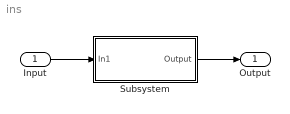
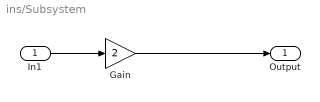
/*
 * File: ins.c
 *
 * Code generated for Simulink model 'ins'.
 *
 * Model version                  : 1.5
 * Simulink Coder version         : 9.7 (R2022a) 13-Nov-2021
 * C/C++ source code generated on : Mon Jan 23 18:38:14 2023
 *
 * Target selection: ert.tlc
 * Embedded hardware selection: ARM Compatible->ARM Cortex-M
 * Code generation objectives: Unspecified
 * Validation result: Not run
 */

#include "ins.h"

/* External inputs (root inport signals with default storage) */
ExtU_ins_T ins_U;

/* External outputs (root outports fed by signals with default storage) */
ExtY_ins_T ins_Y;

/* Real-time model */
static RT_MODEL_ins_T ins_M_;
RT_MODEL_ins_T *const ins_M = &ins_M_;

/* Model step function */
void ins_step(void)
{
  /* Outport: '<Root>/Output' incorporates:
   *  Gain: '<S1>/Gain'
   *  Inport: '<Root>/Input'
   */
  ins_Y.Output = 2.0 * ins_U.Input;
}
